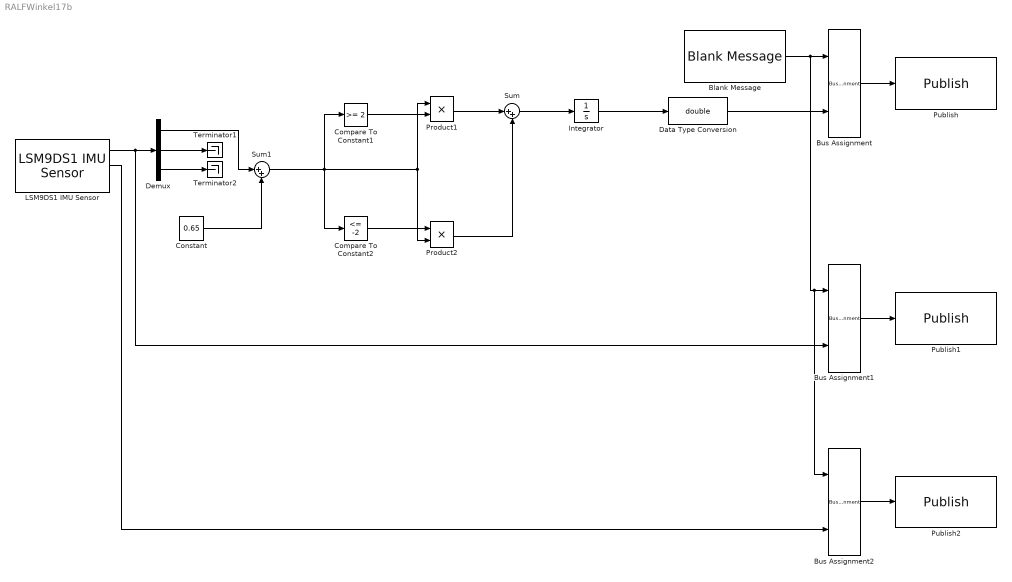
//
// Academic License - for use in teaching, academic research, and meeting
// course requirements at degree granting institutions only.  Not for
// government, commercial, or other organizational use.
//
// File: RALFWinkel17b.cpp
//
// Code generated for Simulink model 'RALFWinkel17b'.
//
// Model version                  : 1.9
// Simulink Coder version         : 8.14 (R2018a) 06-Feb-2018
// C/C++ source code generated on : Thu Nov 29 15:56:00 2018
//
// Target selection: ert.tlc
// Embedded hardware selection: ARM Compatible->ARM Cortex
// Code generation objectives: Unspecified
// Validation result: Not run
//
#include "RALFWinkel17b.h"
#include "RALFWinkel17b_private.h"
#include "RALFWinkel17b_dt.h"
#define RALFWinkel17b_MessageQueueLen  (1)

// Block signals (default storage)
B_RALFWinkel17b_T RALFWinkel17b_B;

// Continuous states
X_RALFWinkel17b_T RALFWinkel17b_X;

// Block states (default storage)
DW_RALFWinkel17b_T RALFWinkel17b_DW;

// Real-time model
RT_MODEL_RALFWinkel17b_T RALFWinkel17b_M_;
RT_MODEL_RALFWinkel17b_T *const RALFWinkel17b_M = &RALFWinkel17b_M_;

// Forward declaration for local functions
static void SystemProp_matlabCodegenSet_gbl(robotics_slros_internal_block_T *obj,
  boolean_T value);
static void matlabCodegenHandle_matlabC_gbl(robotics_slros_internal_block_T *obj);
static void SystemProp_matlabCodegenSetAnyP(raspi_internal_lsm9ds1Block_R_T *obj,
  boolean_T value);
static void RALFWinkel17_SystemCore_release(const
  raspi_internal_lsm9ds1Block_R_T *obj);
static void RALFWinkel17b_SystemCore_delete(const
  raspi_internal_lsm9ds1Block_R_T *obj);
static void matlabCodegenHandle_matlabCodeg(raspi_internal_lsm9ds1Block_R_T *obj);
static void SystemProp_matlabCodegenSetA_gb(codertarget_raspi_internal__g_T *obj,
  boolean_T value);
static void RALFWinke_SystemCore_release_gb(codertarget_raspi_internal__g_T *obj);
static void RALFWinkel_SystemCore_delete_gb(codertarget_raspi_internal__g_T *obj);
static void matlabCodegenHandle_matlabCo_gb(codertarget_raspi_internal__g_T *obj);
static void SystemProp_matlabCodegenSetAn_g(codertarget_raspi_internal_I2_T *obj,
  boolean_T value);
static void RALFWinkel_SystemCore_release_g(codertarget_raspi_internal_I2_T *obj);
static void RALFWinkel1_SystemCore_delete_g(codertarget_raspi_internal_I2_T *obj);
static void matlabCodegenHandle_matlabCod_g(codertarget_raspi_internal_I2_T *obj);

//
// This function updates continuous states using the ODE3 fixed-step
// solver algorithm
//
static void rt_ertODEUpdateContinuousStates(RTWSolverInfo *si )
{
  // Solver Matrices
  static const real_T rt_ODE3_A[3] = {
    1.0/2.0, 3.0/4.0, 1.0
  };

  static const real_T rt_ODE3_B[3][3] = {
    { 1.0/2.0, 0.0, 0.0 },

    { 0.0, 3.0/4.0, 0.0 },

    { 2.0/9.0, 1.0/3.0, 4.0/9.0 }
  };

  time_T t = rtsiGetT(si);
  time_T tnew = rtsiGetSolverStopTime(si);
  time_T h = rtsiGetStepSize(si);
  real_T *x = rtsiGetContStates(si);
  ODE3_IntgData *id = (ODE3_IntgData *)rtsiGetSolverData(si);
  real_T *y = id->y;
  real_T *f0 = id->f[0];
  real_T *f1 = id->f[1];
  real_T *f2 = id->f[2];
  real_T hB[3];
  int_T i;
  int_T nXc = 1;
  rtsiSetSimTimeStep(si,MINOR_TIME_STEP);

  // Save the state values at time t in y, we'll use x as ynew.
  (void) memcpy(y, x,
                (uint_T)nXc*sizeof(real_T));

  // Assumes that rtsiSetT and ModelOutputs are up-to-date
  // f0 = f(t,y)
  rtsiSetdX(si, f0);
  RALFWinkel17b_derivatives();

  // f(:,2) = feval(odefile, t + hA(1), y + f*hB(:,1), args(:)(*));
  hB[0] = h * rt_ODE3_B[0][0];
  for (i = 0; i < nXc; i++) {
    x[i] = y[i] + (f0[i]*hB[0]);
  }

  rtsiSetT(si, t + h*rt_ODE3_A[0]);
  rtsiSetdX(si, f1);
  RALFWinkel17b_step();
  RALFWinkel17b_derivatives();

  // f(:,3) = feval(odefile, t + hA(2), y + f*hB(:,2), args(:)(*));
  for (i = 0; i <= 1; i++) {
    hB[i] = h * rt_ODE3_B[1][i];
  }

  for (i = 0; i < nXc; i++) {
    x[i] = y[i] + (f0[i]*hB[0] + f1[i]*hB[1]);
  }

  rtsiSetT(si, t + h*rt_ODE3_A[1]);
  rtsiSetdX(si, f2);
  RALFWinkel17b_step();
  RALFWinkel17b_derivatives();

  // tnew = t + hA(3);
  // ynew = y + f*hB(:,3);
  for (i = 0; i <= 2; i++) {
    hB[i] = h * rt_ODE3_B[2][i];
  }

  for (i = 0; i < nXc; i++) {
    x[i] = y[i] + (f0[i]*hB[0] + f1[i]*hB[1] + f2[i]*hB[2]);
  }

  rtsiSetT(si, tnew);
  rtsiSetSimTimeStep(si,MAJOR_TIME_STEP);
}

static void SystemProp_matlabCodegenSet_gbl(robotics_slros_internal_block_T *obj,
  boolean_T value)
{
  // Start for MATLABSystem: '<S4>/SinkBlock'
  obj->matlabCodegenIsDeleted = value;
}

static void matlabCodegenHandle_matlabC_gbl(robotics_slros_internal_block_T *obj)
{
  // Start for MATLABSystem: '<S4>/SinkBlock'
  if (!obj->matlabCodegenIsDeleted) {
    SystemProp_matlabCodegenSet_gbl(obj, true);
  }

  // End of Start for MATLABSystem: '<S4>/SinkBlock'
}

static void SystemProp_matlabCodegenSetAnyP(raspi_internal_lsm9ds1Block_R_T *obj,
  boolean_T value)
{
  // Start for MATLABSystem: '<Root>/LSM9DS1 IMU Sensor'
  obj->matlabCodegenIsDeleted = value;
}

static void RALFWinkel17_SystemCore_release(const
  raspi_internal_lsm9ds1Block_R_T *obj)
{
  // Start for MATLABSystem: '<Root>/LSM9DS1 IMU Sensor'
  if ((obj->isInitialized == 1) && obj->isSetupComplete) {
    MW_I2C_Close(obj->i2cobj_A_G.MW_I2C_HANDLE);
    MW_I2C_Close(obj->i2cobj_MAG.MW_I2C_HANDLE);
  }

  // End of Start for MATLABSystem: '<Root>/LSM9DS1 IMU Sensor'
}

static void RALFWinkel17b_SystemCore_delete(const
  raspi_internal_lsm9ds1Block_R_T *obj)
{
  // Start for MATLABSystem: '<Root>/LSM9DS1 IMU Sensor'
  RALFWinkel17_SystemCore_release(obj);
}

static void matlabCodegenHandle_matlabCodeg(raspi_internal_lsm9ds1Block_R_T *obj)
{
  // Start for MATLABSystem: '<Root>/LSM9DS1 IMU Sensor'
  if (!obj->matlabCodegenIsDeleted) {
    SystemProp_matlabCodegenSetAnyP(obj, true);
    RALFWinkel17b_SystemCore_delete(obj);
  }

  // End of Start for MATLABSystem: '<Root>/LSM9DS1 IMU Sensor'
}

static void SystemProp_matlabCodegenSetA_gb(codertarget_raspi_internal__g_T *obj,
  boolean_T value)
{
  // Start for MATLABSystem: '<Root>/LSM9DS1 IMU Sensor'
  obj->matlabCodegenIsDeleted = value;
}

static void RALFWinke_SystemCore_release_gb(codertarget_raspi_internal__g_T *obj)
{
  // Start for MATLABSystem: '<Root>/LSM9DS1 IMU Sensor'
  if (obj->isInitialized == 1) {
    obj->isInitialized = 2;
  }

  // End of Start for MATLABSystem: '<Root>/LSM9DS1 IMU Sensor'
}

static void RALFWinkel_SystemCore_delete_gb(codertarget_raspi_internal__g_T *obj)
{
  // Start for MATLABSystem: '<Root>/LSM9DS1 IMU Sensor'
  RALFWinke_SystemCore_release_gb(obj);
}

static void matlabCodegenHandle_matlabCo_gb(codertarget_raspi_internal__g_T *obj)
{
  // Start for MATLABSystem: '<Root>/LSM9DS1 IMU Sensor'
  if (!obj->matlabCodegenIsDeleted) {
    SystemProp_matlabCodegenSetA_gb(obj, true);
    RALFWinkel_SystemCore_delete_gb(obj);
  }

  // End of Start for MATLABSystem: '<Root>/LSM9DS1 IMU Sensor'
}

static void SystemProp_matlabCodegenSetAn_g(codertarget_raspi_internal_I2_T *obj,
  boolean_T value)
{
  // Start for MATLABSystem: '<Root>/LSM9DS1 IMU Sensor'
  obj->matlabCodegenIsDeleted = value;
}

static void RALFWinkel_SystemCore_release_g(codertarget_raspi_internal_I2_T *obj)
{
  // Start for MATLABSystem: '<Root>/LSM9DS1 IMU Sensor'
  if (obj->isInitialized == 1) {
    obj->isInitialized = 2;
  }

  // End of Start for MATLABSystem: '<Root>/LSM9DS1 IMU Sensor'
}

static void RALFWinkel1_SystemCore_delete_g(codertarget_raspi_internal_I2_T *obj)
{
  // Start for MATLABSystem: '<Root>/LSM9DS1 IMU Sensor'
  RALFWinkel_SystemCore_release_g(obj);
}

static void matlabCodegenHandle_matlabCod_g(codertarget_raspi_internal_I2_T *obj)
{
  // Start for MATLABSystem: '<Root>/LSM9DS1 IMU Sensor'
  if (!obj->matlabCodegenIsDeleted) {
    SystemProp_matlabCodegenSetAn_g(obj, true);
    RALFWinkel1_SystemCore_delete_g(obj);
  }

  // End of Start for MATLABSystem: '<Root>/LSM9DS1 IMU Sensor'
}

// Model step function
void RALFWinkel17b_step(void)
{
  int16_T b_RegisterValue[3];
  uint8_T SwappedDataBytes;
  uint8_T status;
  uint8_T output_raw[6];
  int16_T b_output[3];
  real_T rtb_Sum1;
  real_T b_RegisterValue_0[3];
  int32_T i;
  if (rtmIsMajorTimeStep(RALFWinkel17b_M)) {
    // set solver stop time
    rtsiSetSolverStopTime(&RALFWinkel17b_M->solverInfo,
                          ((RALFWinkel17b_M->Timing.clockTick0+1)*
      RALFWinkel17b_M->Timing.stepSize0));
  }                                    // end MajorTimeStep

  // Update absolute time of base rate at minor time step
  if (rtmIsMinorTimeStep(RALFWinkel17b_M)) {
    RALFWinkel17b_M->Timing.t[0] = rtsiGetT(&RALFWinkel17b_M->solverInfo);
  }

  // BusAssignment: '<Root>/Bus Assignment' incorporates:
  //   Constant: '<S1>/Constant'
  //   Integrator: '<Root>/Integrator'

  RALFWinkel17b_B.BusAssignment = RALFWinkel17b_P.Constant_Value;
  RALFWinkel17b_B.BusAssignment.Z = RALFWinkel17b_X.Integrator_CSTATE;

  // Outputs for Atomic SubSystem: '<Root>/Publish'
  // Start for MATLABSystem: '<S4>/SinkBlock'
  Pub_RALFWinkel17b_101.publish(&RALFWinkel17b_B.BusAssignment);

  // End of Outputs for SubSystem: '<Root>/Publish'
  if (rtmIsMajorTimeStep(RALFWinkel17b_M)) {
    // Start for MATLABSystem: '<Root>/LSM9DS1 IMU Sensor'
    status = 24U;
    memcpy((void *)&SwappedDataBytes, (void *)&status, (uint32_T)((size_t)1 *
            sizeof(uint8_T)));
    status = MW_I2C_MasterWrite(RALFWinkel17b_DW.obj.i2cobj_A_G.MW_I2C_HANDLE,
      106U, &SwappedDataBytes, 1U, true, false);
    if (0 == status) {
      MW_I2C_MasterRead(RALFWinkel17b_DW.obj.i2cobj_A_G.MW_I2C_HANDLE, 106U,
                        output_raw, 6U, false, true);
      memcpy((void *)&b_RegisterValue[0], (void *)&output_raw[0], (uint32_T)
             ((size_t)3 * sizeof(int16_T)));
    } else {
      b_RegisterValue[0] = 0;
      b_RegisterValue[1] = 0;
      b_RegisterValue[2] = 0;
    }

    status = 40U;
    memcpy((void *)&SwappedDataBytes, (void *)&status, (uint32_T)((size_t)1 *
            sizeof(uint8_T)));
    status = MW_I2C_MasterWrite(RALFWinkel17b_DW.obj.i2cobj_A_G.MW_I2C_HANDLE,
      106U, &SwappedDataBytes, 1U, true, false);
    if (0 == status) {
      MW_I2C_MasterRead(RALFWinkel17b_DW.obj.i2cobj_A_G.MW_I2C_HANDLE, 106U,
                        output_raw, 6U, false, true);
      memcpy((void *)&b_output[0], (void *)&output_raw[0], (uint32_T)((size_t)3 *
              sizeof(int16_T)));
    }

    status = 40U;
    memcpy((void *)&SwappedDataBytes, (void *)&status, (uint32_T)((size_t)1 *
            sizeof(uint8_T)));
    status = MW_I2C_MasterWrite(RALFWinkel17b_DW.obj.i2cobj_MAG.MW_I2C_HANDLE,
      28U, &SwappedDataBytes, 1U, true, false);
    if (0 == status) {
      MW_I2C_MasterRead(RALFWinkel17b_DW.obj.i2cobj_MAG.MW_I2C_HANDLE, 28U,
                        output_raw, 6U, false, true);
      memcpy((void *)&b_output[0], (void *)&output_raw[0], (uint32_T)((size_t)3 *
              sizeof(int16_T)));
    }

    for (i = 0; i < 3; i++) {
      b_RegisterValue_0[i] = ((RALFWinkel17b_DW.obj.CalGyroA[3 * i + 1] *
        (real_T)b_RegisterValue[1] + RALFWinkel17b_DW.obj.CalGyroA[3 * i] *
        (real_T)b_RegisterValue[0]) + RALFWinkel17b_DW.obj.CalGyroA[3 * i + 2] *
        (real_T)b_RegisterValue[2]) + RALFWinkel17b_DW.obj.CalGyroB[i];
    }

    // Sum: '<Root>/Sum1' incorporates:
    //   Constant: '<Root>/Constant'
    //   MATLABSystem: '<Root>/LSM9DS1 IMU Sensor'
    //   MATLABSystem: '<Root>/LSM9DS1 IMU Sensor'

    rtb_Sum1 = b_RegisterValue_0[0] * 245.0 / 32768.0 +
      RALFWinkel17b_P.Constant_Value_h;

    // Sum: '<Root>/Sum' incorporates:
    //   Constant: '<S2>/Constant'
    //   Constant: '<S3>/Constant'
    //   Product: '<Root>/Product1'
    //   Product: '<Root>/Product2'
    //   RelationalOperator: '<S2>/Compare'
    //   RelationalOperator: '<S3>/Compare'

    RALFWinkel17b_B.Sum = (real_T)(rtb_Sum1 >=
      RALFWinkel17b_P.CompareToConstant1_const) * rtb_Sum1 + (real_T)(rtb_Sum1 <=
      RALFWinkel17b_P.CompareToConstant2_const) * rtb_Sum1;
  }

  if (rtmIsMajorTimeStep(RALFWinkel17b_M)) {
    // External mode
    rtExtModeUploadCheckTrigger(2);

    {                                  // Sample time: [0.0s, 0.0s]
      rtExtModeUpload(0, RALFWinkel17b_M->Timing.t[0]);
    }

    if (rtmIsMajorTimeStep(RALFWinkel17b_M)) {// Sample time: [0.01s, 0.0s]
      rtExtModeUpload(1, ((RALFWinkel17b_M->Timing.clockTick1) * 0.01));
    }
  }                                    // end MajorTimeStep

  if (rtmIsMajorTimeStep(RALFWinkel17b_M)) {
    // signal main to stop simulation
    {                                  // Sample time: [0.0s, 0.0s]
      if ((rtmGetTFinal(RALFWinkel17b_M)!=-1) &&
          !((rtmGetTFinal(RALFWinkel17b_M)-((RALFWinkel17b_M->Timing.clockTick1)
             * 0.01)) > ((RALFWinkel17b_M->Timing.clockTick1) * 0.01) *
            (DBL_EPSILON))) {
        rtmSetErrorStatus(RALFWinkel17b_M, "Simulation finished");
      }

      if (rtmGetStopRequested(RALFWinkel17b_M)) {
        rtmSetErrorStatus(RALFWinkel17b_M, "Simulation finished");
      }
    }

    rt_ertODEUpdateContinuousStates(&RALFWinkel17b_M->solverInfo);

    // Update absolute time for base rate
    // The "clockTick0" counts the number of times the code of this task has
    //  been executed. The absolute time is the multiplication of "clockTick0"
    //  and "Timing.stepSize0". Size of "clockTick0" ensures timer will not
    //  overflow during the application lifespan selected.

    ++RALFWinkel17b_M->Timing.clockTick0;
    RALFWinkel17b_M->Timing.t[0] = rtsiGetSolverStopTime
      (&RALFWinkel17b_M->solverInfo);

    {
      // Update absolute timer for sample time: [0.01s, 0.0s]
      // The "clockTick1" counts the number of times the code of this task has
      //  been executed. The resolution of this integer timer is 0.01, which is the step size
      //  of the task. Size of "clockTick1" ensures timer will not overflow during the
      //  application lifespan selected.

      RALFWinkel17b_M->Timing.clockTick1++;
    }
  }                                    // end MajorTimeStep
}
